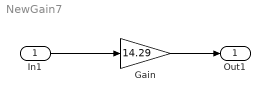
//
// File: NewGain7.cpp
//
// Code generated for Simulink model 'NewGain7'.
//
// Model version                  : 1.1
// Simulink Coder version         : 8.11 (R2016b) 25-Aug-2016
// C/C++ source code generated on : Mon Apr 16 09:38:06 2018
//
// Target selection: ert.tlc
// Embedded hardware selection: Intel->x86-64 (Windows64)
// Code generation objectives: Unspecified
// Validation result: Not run
//
#include "NewGain7.h"
#include "NewGain7_private.h"

// External inputs (root inport signals with auto storage)
ExternalInputs_NewGain7_T NewGain7_U;

// External outputs (root outports fed by signals with auto storage)
ExternalOutputs_NewGain7_T NewGain7_Y;

// Real-time model
RT_MODEL_NewGain7_T NewGain7_M_;
RT_MODEL_NewGain7_T *const NewGain7_M = &NewGain7_M_;

// Model step function
void NewGain7_step(void)
{
  // Outport: '<Root>/Out1' incorporates:
  //   Gain: '<Root>/Gain'
  //   Inport: '<Root>/In1'

  NewGain7_Y.Out1 = 14.29 * NewGain7_U.In1;
}
